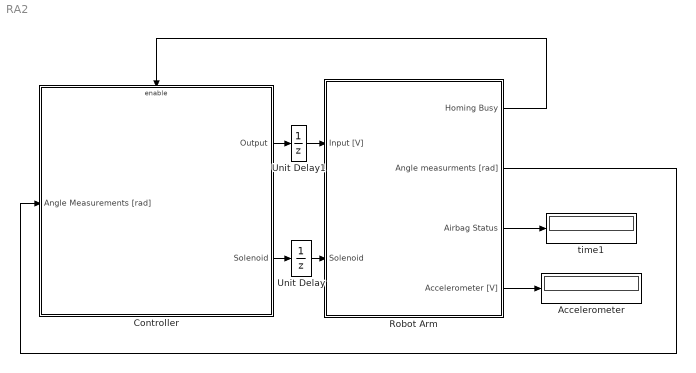
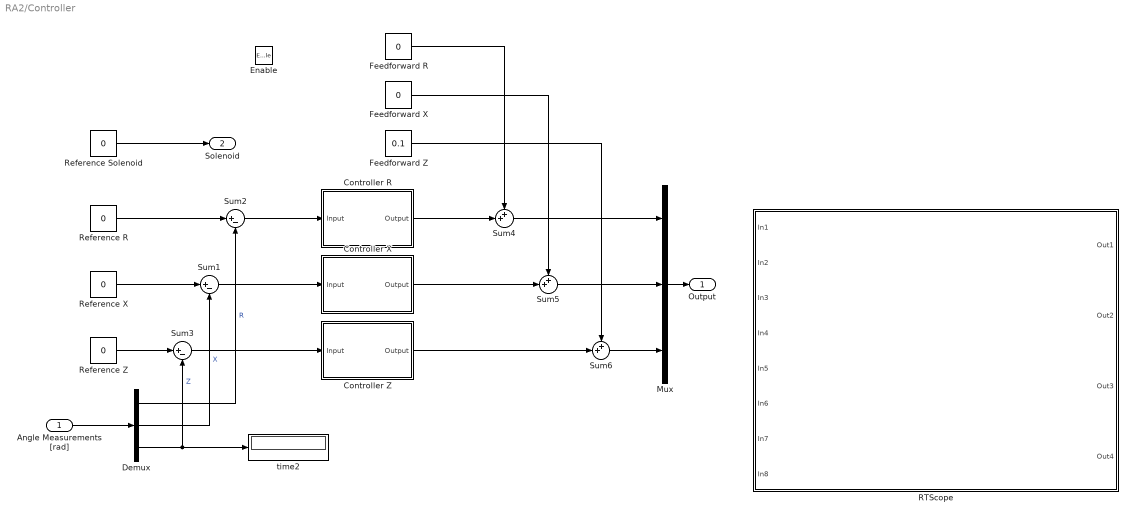
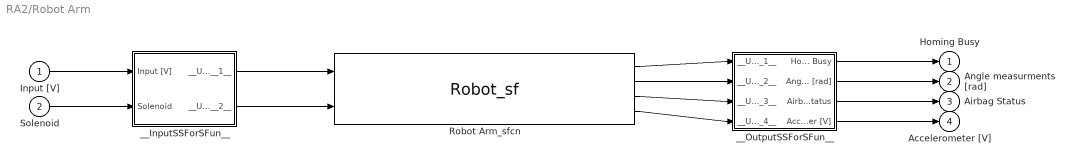
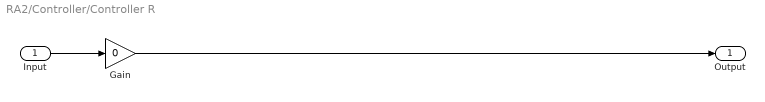
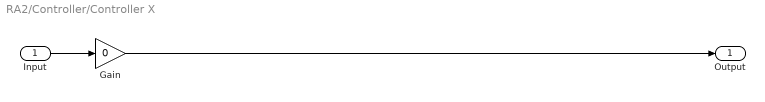
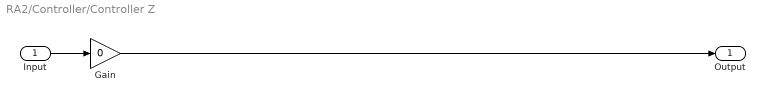
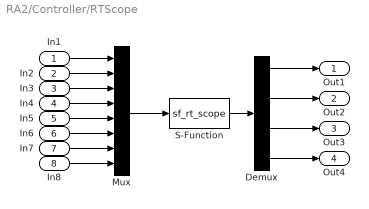
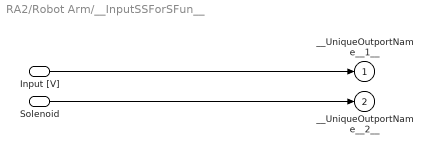
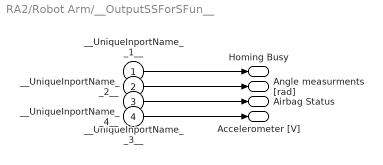
/*
 * RA2.c
 *
 * Academic License - for use in teaching, academic research, and meeting
 * course requirements at degree granting institutions only.  Not for
 * government, commercial, or other organizational use.
 *
 * Code generation for model "RA2".
 *
 * Model version              : 1.899
 * Simulink Coder version : 8.9 (R2015b) 13-Aug-2015
 * C source code generated on : Thu Apr 21 18:28:03 2016
 *
 * Target selection: ectarget.tlc
 * Note: GRT includes extra infrastructure and instrumentation for prototyping
 * Embedded hardware selection: 32-bit Generic
 * Code generation objectives: Unspecified
 * Validation result: Not run
 */

#include "RA2.h"
#include "RA2_private.h"
#include "RA2_dt.h"
#undef S_FUNCTION_NAME
#if !defined(RTW_GENERATED_SFCN_TUNABLE_PRMS_Robot_sf)
#define RTW_GENERATED_SFCN_TUNABLE_PRMS_Robot_sf
#endif

#include "Robot_sf.h"

const real_T RA2_RGND = 0.0;           /* real_T ground */

/* Block signals (auto storage) */
B_RA2_T RA2_B;

/* Block states (auto storage) */
DW_RA2_T RA2_DW;

/* Real-time model */
RT_MODEL_RA2_T RA2_M_;
RT_MODEL_RA2_T *const RA2_M = &RA2_M_;

/* Model output function */
void RA2_output(void)
{
  /* Reset subsysRan breadcrumbs */
  srClearBC(RA2_DW.Controller_SubsysRanBC);

  /* UnitDelay: '<Root>/Unit Delay1' */
  RA2_B.UnitDelay1[0] = RA2_DW.UnitDelay1_DSTATE[0];
  RA2_B.UnitDelay1[1] = RA2_DW.UnitDelay1_DSTATE[1];
  RA2_B.UnitDelay1[2] = RA2_DW.UnitDelay1_DSTATE[2];

  /* UnitDelay: '<Root>/Unit Delay' */
  RA2_B.UnitDelay = RA2_DW.UnitDelay_DSTATE;

  /* RTW Generated Level2 S-Function Block: '<S2>/Robot Arm_sfcn' (Robot_sf) */
  {
    SimStruct *rts = RA2_M->childSfunctions[1];
    sfcnOutputs(rts, 0);
  }

  /* Outputs for Enabled SubSystem: '<Root>/Controller' incorporates:
   *  EnablePort: '<S1>/Enable'
   */
  if (RA2_B.RobotArm_sfcn_o1 > 0.0) {
    if (!RA2_DW.Controller_MODE) {
      RA2_DW.Controller_MODE = true;
    }
  } else {
    if (RA2_DW.Controller_MODE) {
      RA2_DW.Controller_MODE = false;
    }
  }

  if (RA2_DW.Controller_MODE) {
    /* Sum: '<S1>/Sum4' incorporates:
     *  Constant: '<S1>/Feedforward R'
     *  Constant: '<S1>/Reference R'
     *  Gain: '<S3>/Gain'
     *  Sum: '<S1>/Sum2'
     */
    RA2_B.Sum4 = (RA2_P.ReferenceR_Value - RA2_B.RobotArm_sfcn_o2[0]) *
      RA2_P.Gain_Gain + RA2_P.FeedforwardR_Value;

    /* Sum: '<S1>/Sum5' incorporates:
     *  Constant: '<S1>/Feedforward X'
     *  Constant: '<S1>/Reference X'
     *  Gain: '<S4>/Gain'
     *  Sum: '<S1>/Sum1'
     */
    RA2_B.Sum5 = (RA2_P.ReferenceX_Value - RA2_B.RobotArm_sfcn_o2[1]) *
      RA2_P.Gain_Gain_e + RA2_P.FeedforwardX_Value;

    /* Sum: '<S1>/Sum6' incorporates:
     *  Constant: '<S1>/Feedforward Z'
     *  Constant: '<S1>/Reference Z'
     *  Gain: '<S5>/Gain'
     *  Sum: '<S1>/Sum3'
     */
    RA2_B.Sum6 = (RA2_P.ReferenceZ_Value - RA2_B.RobotArm_sfcn_o2[2]) *
      RA2_P.Gain_Gain_l + RA2_P.FeedforwardZ_Value;

    /* Constant: '<S1>/Reference Solenoid' */
    RA2_B.ReferenceSolenoid = RA2_P.ReferenceSolenoid_Value;

    /* Level2 S-Function Block: '<S6>/S-Function' (sf_rt_scope) */
    {
      SimStruct *rts = RA2_M->childSfunctions[0];
      sfcnOutputs(rts, 0);
    }

    srUpdateBC(RA2_DW.Controller_SubsysRanBC);
  }

  /* End of Outputs for SubSystem: '<Root>/Controller' */
}

/* Model update function */
void RA2_update(void)
{
  /* Update for UnitDelay: '<Root>/Unit Delay1' */
  RA2_DW.UnitDelay1_DSTATE[0] = RA2_B.Sum4;
  RA2_DW.UnitDelay1_DSTATE[1] = RA2_B.Sum5;
  RA2_DW.UnitDelay1_DSTATE[2] = RA2_B.Sum6;

  /* Update for UnitDelay: '<Root>/Unit Delay' */
  RA2_DW.UnitDelay_DSTATE = RA2_B.ReferenceSolenoid;

  /* RTW Generated Level2 S-Function Block: '<S2>/Robot Arm_sfcn' (Robot_sf) */
  {
    SimStruct *rts = RA2_M->childSfunctions[1];
    sfcnUpdate(rts, 0);
    if (ssGetErrorStatus(rts) != (NULL))
      return;
  }

  /* Update absolute time for base rate */
  /* The "clockTick0" counts the number of times the code of this task has
   * been executed. The absolute time is the multiplication of "clockTick0"
   * and "Timing.stepSize0". Size of "clockTick0" ensures timer will not
   * overflow during the application lifespan selected.
   * Timer of this task consists of two 32 bit unsigned integers.
   * The two integers represent the low bits Timing.clockTick0 and the high bits
   * Timing.clockTickH0. When the low bit overflows to 0, the high bits increment.
   */
  if (!(++RA2_M->Timing.clockTick0)) {
    ++RA2_M->Timing.clockTickH0;
  }

  RA2_M->Timing.t[0] = RA2_M->Timing.clockTick0 * RA2_M->Timing.stepSize0 +
    RA2_M->Timing.clockTickH0 * RA2_M->Timing.stepSize0 * 4294967296.0;

  {
    /* Update absolute timer for sample time: [0.000244140625s, 0.0s] */
    /* The "clockTick1" counts the number of times the code of this task has
     * been executed. The absolute time is the multiplication of "clockTick1"
     * and "Timing.stepSize1". Size of "clockTick1" ensures timer will not
     * overflow during the application lifespan selected.
     * Timer of this task consists of two 32 bit unsigned integers.
     * The two integers represent the low bits Timing.clockTick1 and the high bits
     * Timing.clockTickH1. When the low bit overflows to 0, the high bits increment.
     */
    if (!(++RA2_M->Timing.clockTick1)) {
      ++RA2_M->Timing.clockTickH1;
    }

    RA2_M->Timing.t[1] = RA2_M->Timing.clockTick1 * RA2_M->Timing.stepSize1 +
      RA2_M->Timing.clockTickH1 * RA2_M->Timing.stepSize1 * 4294967296.0;
  }
}
